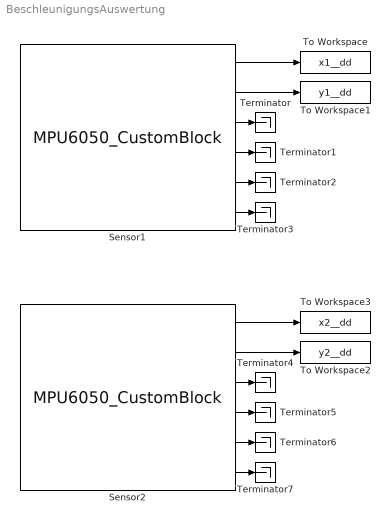
/*
 * Academic License - for use in teaching, academic research, and meeting
 * course requirements at degree granting institutions only.  Not for
 * government, commercial, or other organizational use.
 *
 * File: BeschleunigungsAuswertung.c
 *
 * Code generated for Simulink model 'BeschleunigungsAuswertung'.
 *
 * Model version                  : 1.82
 * Simulink Coder version         : 8.10 (R2016a) 10-Feb-2016
 * C/C++ source code generated on : Sat Aug 27 12:09:08 2016
 *
 * Target selection: ert.tlc
 * Embedded hardware selection: ARM Compatible->ARM Cortex
 * Code generation objectives: Unspecified
 * Validation result: Not run
 */

#include "BeschleunigungsAuswertung.h"
#include "BeschleunigungsAuswertung_private.h"
#include "BeschleunigungsAuswertung_dt.h"

/* Block signals (auto storage) */
B_BeschleunigungsAuswertung_T BeschleunigungsAuswertung_B;

/* Block states (auto storage) */
DW_BeschleunigungsAuswertung_T BeschleunigungsAuswertung_DW;

/* Real-time model */
RT_MODEL_BeschleunigungsAuswe_T BeschleunigungsAuswertung_M_;
RT_MODEL_BeschleunigungsAuswe_T *const BeschleunigungsAuswertung_M =
  &BeschleunigungsAuswertung_M_;

/* Model step function */
void BeschleunigungsAuswertung_step(void)
{
  /* S-Function (MPU6050_CustomBlock): '<Root>/Sensor1' */
  MPU6050_CustomBlock_Outputs_wrapper( &BeschleunigungsAuswertung_B.Sensor1_o1,
    &BeschleunigungsAuswertung_B.Sensor1_o2,
    &BeschleunigungsAuswertung_B.Sensor1_o3,
    &BeschleunigungsAuswertung_B.Sensor1_o4,
    &BeschleunigungsAuswertung_B.Sensor1_o5,
    &BeschleunigungsAuswertung_B.Sensor1_o6,
    &BeschleunigungsAuswertung_DW.Sensor1_DSTATE,
    &BeschleunigungsAuswertung_P.Sensor1_P1, 1,
    &BeschleunigungsAuswertung_P.Sensor1_P2, 1);

  /* S-Function (MPU6050_CustomBlock): '<Root>/Sensor2' */
  MPU6050_CustomBlock_Outputs_wrapper( &BeschleunigungsAuswertung_B.Sensor2_o1,
    &BeschleunigungsAuswertung_B.Sensor2_o2,
    &BeschleunigungsAuswertung_B.Sensor2_o3,
    &BeschleunigungsAuswertung_B.Sensor2_o4,
    &BeschleunigungsAuswertung_B.Sensor2_o5,
    &BeschleunigungsAuswertung_B.Sensor2_o6,
    &BeschleunigungsAuswertung_DW.Sensor2_DSTATE,
    &BeschleunigungsAuswertung_P.Sensor2_P1, 1,
    &BeschleunigungsAuswertung_P.Sensor2_P2, 1);

  /* S-Function "MPU6050_CustomBlock_wrapper" Block: <Root>/Sensor1 */
  MPU6050_CustomBlock_Update_wrapper( &BeschleunigungsAuswertung_B.Sensor1_o1,
    &BeschleunigungsAuswertung_B.Sensor1_o2,
    &BeschleunigungsAuswertung_B.Sensor1_o3,
    &BeschleunigungsAuswertung_B.Sensor1_o4,
    &BeschleunigungsAuswertung_B.Sensor1_o5,
    &BeschleunigungsAuswertung_B.Sensor1_o6,
    &BeschleunigungsAuswertung_DW.Sensor1_DSTATE,
    &BeschleunigungsAuswertung_P.Sensor1_P1, 1,
    &BeschleunigungsAuswertung_P.Sensor1_P2, 1);

  /* S-Function "MPU6050_CustomBlock_wrapper" Block: <Root>/Sensor2 */
  MPU6050_CustomBlock_Update_wrapper( &BeschleunigungsAuswertung_B.Sensor2_o1,
    &BeschleunigungsAuswertung_B.Sensor2_o2,
    &BeschleunigungsAuswertung_B.Sensor2_o3,
    &BeschleunigungsAuswertung_B.Sensor2_o4,
    &BeschleunigungsAuswertung_B.Sensor2_o5,
    &BeschleunigungsAuswertung_B.Sensor2_o6,
    &BeschleunigungsAuswertung_DW.Sensor2_DSTATE,
    &BeschleunigungsAuswertung_P.Sensor2_P1, 1,
    &BeschleunigungsAuswertung_P.Sensor2_P2, 1);

  /* External mode */
  rtExtModeUploadCheckTrigger(1);

  {                                    /* Sample time: [0.01s, 0.0s] */
    rtExtModeUpload(0, BeschleunigungsAuswertung_M->Timing.taskTime0);
  }

  /* signal main to stop simulation */
  {                                    /* Sample time: [0.01s, 0.0s] */
    if ((rtmGetTFinal(BeschleunigungsAuswertung_M)!=-1) &&
        !((rtmGetTFinal(BeschleunigungsAuswertung_M)-
           BeschleunigungsAuswertung_M->Timing.taskTime0) >
          BeschleunigungsAuswertung_M->Timing.taskTime0 * (DBL_EPSILON))) {
      rtmSetErrorStatus(BeschleunigungsAuswertung_M, "Simulation finished");
    }

    if (rtmGetStopRequested(BeschleunigungsAuswertung_M)) {
      rtmSetErrorStatus(BeschleunigungsAuswertung_M, "Simulation finished");
    }
  }

  /* Update absolute time for base rate */
  /* The "clockTick0" counts the number of times the code of this task has
   * been executed. The absolute time is the multiplication of "clockTick0"
   * and "Timing.stepSize0". Size of "clockTick0" ensures timer will not
   * overflow during the application lifespan selected.
   * Timer of this task consists of two 32 bit unsigned integers.
   * The two integers represent the low bits Timing.clockTick0 and the high bits
   * Timing.clockTickH0. When the low bit overflows to 0, the high bits increment.
   */
  if (!(++BeschleunigungsAuswertung_M->Timing.clockTick0)) {
    ++BeschleunigungsAuswertung_M->Timing.clockTickH0;
  }

  BeschleunigungsAuswertung_M->Timing.taskTime0 =
    BeschleunigungsAuswertung_M->Timing.clockTick0 *
    BeschleunigungsAuswertung_M->Timing.stepSize0 +
    BeschleunigungsAuswertung_M->Timing.clockTickH0 *
    BeschleunigungsAuswertung_M->Timing.stepSize0 * 4294967296.0;
}
